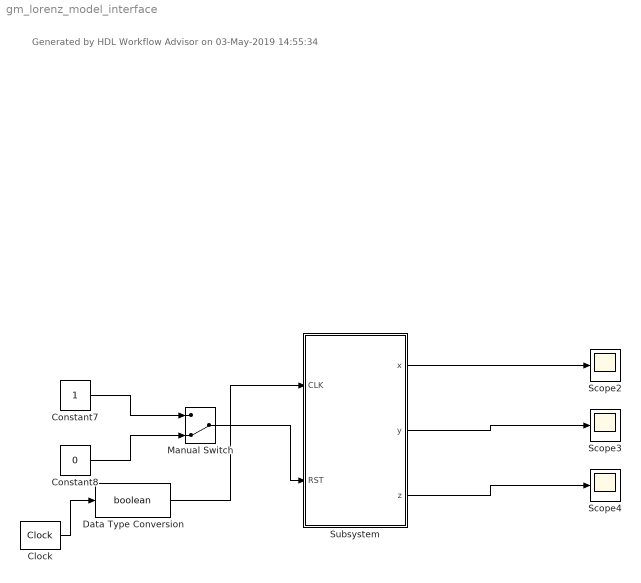
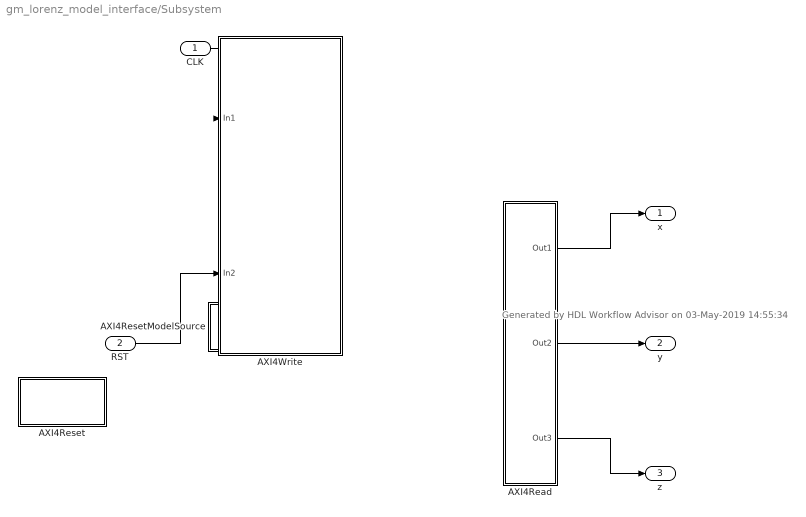
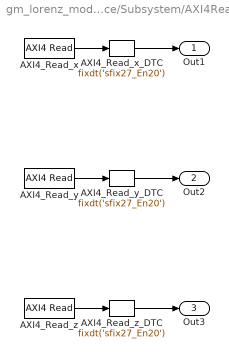
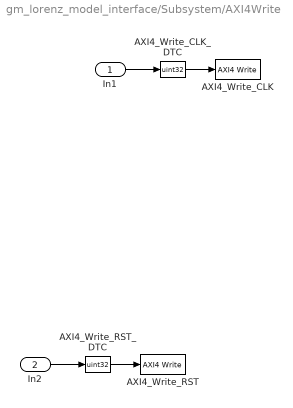
== system gm_lorenz_model_interface/Subsystem/AXI4Reset ==

== system gm_lorenz_model_interface/Subsystem/AXI4ResetModelSource ==

/*
 * Academic License - for use in teaching, academic research, and meeting
 * course requirements at degree granting institutions only.  Not for
 * government, commercial, or other organizational use.
 *
 * File: gm_lorenz_model_interface.c
 *
 * Code generated for Simulink model 'gm_lorenz_model_interface'.
 *
 * Model version                  : 1.15
 * Simulink Coder version         : 8.14 (R2018a) 06-Feb-2018
 * C/C++ source code generated on : Fri May  3 15:18:05 2019
 *
 * Target selection: ert.tlc
 * Embedded hardware selection: ARM Compatible->ARM Cortex
 * Code generation objectives: Unspecified
 * Validation result: Not run
 */

#include "gm_lorenz_model_interface.h"
#include "gm_lorenz_model_interface_private.h"
#include "gm_lorenz_model_interface_dt.h"
#define gm_lorenz_m_RegisterOffset_bk2g (272U)
#define gm_lorenz_mo_RegisterOffset_bk2 (268U)
#define gm_lorenz_mod_RegisterOffset_bk (256U)
#define gm_lorenz_mode_RegisterOffset_b (260U)
#define gm_lorenz_model__RegisterOffset (264U)

/* user code (top of source file) */
/* System '<Root>/Subsystem' */
#include "axi_lct.h"

/* Block signals (default storage) */
B_gm_lorenz_model_interface_T gm_lorenz_model_interface_B;

/* Block states (default storage) */
DW_gm_lorenz_model_interface_T gm_lorenz_model_interface_DW;

/* Real-time model */
RT_MODEL_gm_lorenz_model_inte_T gm_lorenz_model_interface_M_;
RT_MODEL_gm_lorenz_model_inte_T *const gm_lorenz_model_interface_M =
  &gm_lorenz_model_interface_M_;

/* Forward declaration for local functions */
static void SystemProp_matlabCodegenSet_bk2(alterasoc_AXIWrite_gm_lorenz__T *obj,
  boolean_T value);
static void gm_loren_SystemCore_release_bk2(const
  alterasoc_AXIWrite_gm_lorenz__T *obj);
static void gm_lorenz_SystemCore_delete_bk2(const
  alterasoc_AXIWrite_gm_lorenz__T *obj);
static void matlabCodegenHandle_matlabC_bk2(alterasoc_AXIWrite_gm_lorenz__T *obj);
static void SystemProp_matlabCodegenSetAnyP(alterasoc_AXIRead_gm_lorenz_m_T *obj,
  boolean_T value);
static void gm_lorenz_mo_SystemCore_release(const
  alterasoc_AXIRead_gm_lorenz_m_T *obj);
static void gm_lorenz_mod_SystemCore_delete(const
  alterasoc_AXIRead_gm_lorenz_m_T *obj);
static void matlabCodegenHandle_matlabCodeg(alterasoc_AXIRead_gm_lorenz_m_T *obj);
static void SystemProp_matlabCodegenSet_bk2(alterasoc_AXIWrite_gm_lorenz__T *obj,
  boolean_T value)
{
  obj->matlabCodegenIsDeleted = value;
}

static void gm_loren_SystemCore_release_bk2(const
  alterasoc_AXIWrite_gm_lorenz__T *obj)
{
  AXI4_struct * p_state;
  if ((obj->isInitialized == 1) && obj->isSetupComplete) {
    p_state = (AXI4_struct *)(obj->DeviceState);
    AXI4_TERMINATE(p_state);
  }
}

static void gm_lorenz_SystemCore_delete_bk2(const
  alterasoc_AXIWrite_gm_lorenz__T *obj)
{
  gm_loren_SystemCore_release_bk2(obj);
}

static void matlabCodegenHandle_matlabC_bk2(alterasoc_AXIWrite_gm_lorenz__T *obj)
{
  if (!obj->matlabCodegenIsDeleted) {
    SystemProp_matlabCodegenSet_bk2(obj, true);
    gm_lorenz_SystemCore_delete_bk2(obj);
  }
}

static void SystemProp_matlabCodegenSetAnyP(alterasoc_AXIRead_gm_lorenz_m_T *obj,
  boolean_T value)
{
  obj->matlabCodegenIsDeleted = value;
}

static void gm_lorenz_mo_SystemCore_release(const
  alterasoc_AXIRead_gm_lorenz_m_T *obj)
{
  AXI4_struct * p_state;
  if ((obj->isInitialized == 1) && obj->isSetupComplete) {
    p_state = (AXI4_struct *)(obj->DeviceState);
    AXI4_TERMINATE(p_state);
  }
}

static void gm_lorenz_mod_SystemCore_delete(const
  alterasoc_AXIRead_gm_lorenz_m_T *obj)
{
  gm_lorenz_mo_SystemCore_release(obj);
}

static void matlabCodegenHandle_matlabCodeg(alterasoc_AXIRead_gm_lorenz_m_T *obj)
{
  if (!obj->matlabCodegenIsDeleted) {
    SystemProp_matlabCodegenSetAnyP(obj, true);
    gm_lorenz_mod_SystemCore_delete(obj);
  }
}

/* Model step function */
void gm_lorenz_model_interface_step(void)
{
  AXI4_struct * p_state;
  uint32_T rtb_AXI4_Write_CLK_DTC;
  boolean_T rtb_ManualSwitch;
  boolean_T rtb_DataTypeConversion;
  int32_T tmp;

  /* Sum: '<S1>/Sum' incorporates:
   *  Constant: '<S1>/Constant'
   *  UnitDelay: '<S1>/Unit Delay'
   */
  gm_lorenz_model_interface_DW.UnitDelay_DSTATE =
    gm_lorenz_model_interface_P.Constant_Value -
    gm_lorenz_model_interface_DW.UnitDelay_DSTATE;

  /* DataTypeConversion: '<Root>/Data Type Conversion' incorporates:
   *  UnitDelay: '<S1>/Unit Delay'
   */
  rtb_DataTypeConversion = (gm_lorenz_model_interface_DW.UnitDelay_DSTATE != 0.0);

  /* ManualSwitch: '<Root>/Manual Switch' incorporates:
   *  Constant: '<Root>/Constant7'
   *  Constant: '<Root>/Constant8'
   */
  if (gm_lorenz_model_interface_P.ManualSwitch_CurrentSetting == 1) {
    rtb_ManualSwitch = gm_lorenz_model_interface_P.Constant7_Value;
  } else {
    rtb_ManualSwitch = gm_lorenz_model_interface_P.Constant8_Value;
  }

  /* End of ManualSwitch: '<Root>/Manual Switch' */

  /* Outputs for Atomic SubSystem: '<Root>/Subsystem' */

  /* DataTypeConversion: '<S4>/AXI4_Write_CLK_DTC' */
  rtb_AXI4_Write_CLK_DTC = rtb_DataTypeConversion;

  /* MATLABSystem: '<S8>/AXI4 Write' */
  p_state = (AXI4_struct *)(gm_lorenz_model_interface_DW.obj_a.DeviceState);
  AXI4_WRITE(p_state, &rtb_AXI4_Write_CLK_DTC, gm_lorenz_mo_RegisterOffset_bk2,
             4U);

  /* DataTypeConversion: '<S4>/AXI4_Write_RST_DTC' */
  rtb_AXI4_Write_CLK_DTC = rtb_ManualSwitch;

  /* MATLABSystem: '<S9>/AXI4 Write' */
  p_state = (AXI4_struct *)(gm_lorenz_model_interface_DW.obj_d.DeviceState);
  AXI4_WRITE(p_state, &rtb_AXI4_Write_CLK_DTC, gm_lorenz_m_RegisterOffset_bk2g,
             4U);

  /* MATLABSystem: '<S5>/AXI4 Read' */
  p_state = (AXI4_struct *)(gm_lorenz_model_interface_DW.obj_h.DeviceState);
  AXI4_READ(p_state, &rtb_AXI4_Write_CLK_DTC, gm_lorenz_model__RegisterOffset,
            4U);

  /* DataTypeConversion: '<S3>/AXI4_Read_x_DTC' incorporates:
   *  MATLABSystem: '<S5>/AXI4 Read'
   */
  tmp = (int32_T)rtb_AXI4_Write_CLK_DTC;
  gm_lorenz_model_interface_B.AXI4_Read_x_DTC = (tmp & 67108864U) != 0U ? tmp |
    -67108864 : tmp & 67108863;

  /* MATLABSystem: '<S6>/AXI4 Read' */
  p_state = (AXI4_struct *)(gm_lorenz_model_interface_DW.obj_p.DeviceState);
  AXI4_READ(p_state, &rtb_AXI4_Write_CLK_DTC, gm_lorenz_mode_RegisterOffset_b,
            4U);

  /* DataTypeConversion: '<S3>/AXI4_Read_y_DTC' incorporates:
   *  MATLABSystem: '<S6>/AXI4 Read'
   */
  tmp = (int32_T)rtb_AXI4_Write_CLK_DTC;
  gm_lorenz_model_interface_B.AXI4_Read_y_DTC = (tmp & 67108864U) != 0U ? tmp |
    -67108864 : tmp & 67108863;

  /* MATLABSystem: '<S7>/AXI4 Read' */
  p_state = (AXI4_struct *)(gm_lorenz_model_interface_DW.obj.DeviceState);
  AXI4_READ(p_state, &rtb_AXI4_Write_CLK_DTC, gm_lorenz_mod_RegisterOffset_bk,
            4U);

  /* DataTypeConversion: '<S3>/AXI4_Read_z_DTC' incorporates:
   *  MATLABSystem: '<S7>/AXI4 Read'
   */
  tmp = (int32_T)rtb_AXI4_Write_CLK_DTC;
  gm_lorenz_model_interface_B.AXI4_Read_z_DTC = (tmp & 67108864U) != 0U ? tmp |
    -67108864 : tmp & 67108863;

  /* End of Outputs for SubSystem: '<Root>/Subsystem' */

  /* External mode */
  rtExtModeUploadCheckTrigger(1);

  {                                    /* Sample time: [5.0E-5s, 0.0s] */
    rtExtModeUpload(0, gm_lorenz_model_interface_M->Timing.taskTime0);
  }

  /* signal main to stop simulation */
  {                                    /* Sample time: [5.0E-5s, 0.0s] */
    if ((rtmGetTFinal(gm_lorenz_model_interface_M)!=-1) &&
        !((rtmGetTFinal(gm_lorenz_model_interface_M)-
           gm_lorenz_model_interface_M->Timing.taskTime0) >
          gm_lorenz_model_interface_M->Timing.taskTime0 * (DBL_EPSILON))) {
      rtmSetErrorStatus(gm_lorenz_model_interface_M, "Simulation finished");
    }

    if (rtmGetStopRequested(gm_lorenz_model_interface_M)) {
      rtmSetErrorStatus(gm_lorenz_model_interface_M, "Simulation finished");
    }
  }

  /* Update absolute time for base rate */
  /* The "clockTick0" counts the number of times the code of this task has
   * been executed. The absolute time is the multiplication of "clockTick0"
   * and "Timing.stepSize0". Size of "clockTick0" ensures timer will not
   * overflow during the application lifespan selected.
   */
  gm_lorenz_model_interface_M->Timing.taskTime0 =
    (++gm_lorenz_model_interface_M->Timing.clockTick0) *
    gm_lorenz_model_interface_M->Timing.stepSize0;
}
